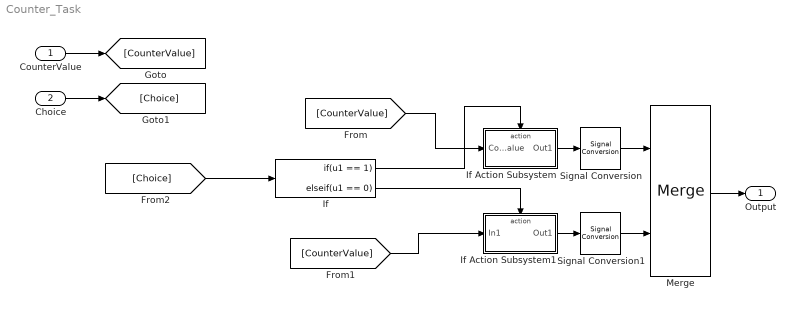
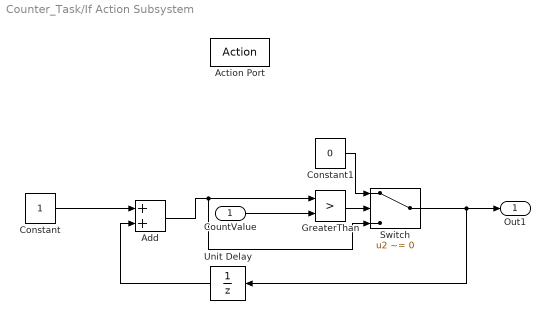
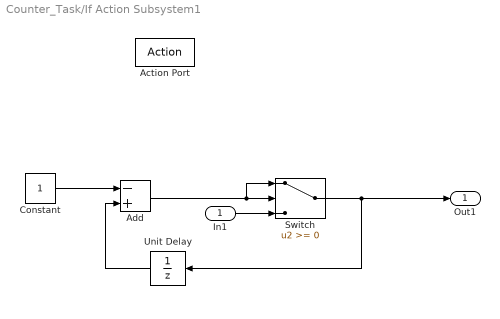
/*
 * File: Counter_Task.c
 *
 * Code generated for Simulink model 'Counter_Task'.
 *
 * Model version                  : 1.3
 * Simulink Coder version         : 9.5 (R2021a) 14-Nov-2020
 * C/C++ source code generated on : Mon Feb 12 16:46:40 2024
 *
 * Target selection: ert.tlc
 * Embedded hardware selection: Intel->x86-64 (Windows64)
 * Code generation objectives: Unspecified
 * Validation result: Not run
 */

#include "Counter_Task.h"
#include "Counter_Task_private.h"

/* Block states (default storage) */
DW_Counter_Task_T Counter_Task_DW;

/* External inputs (root inport signals with default storage) */
ExtU_Counter_Task_T Counter_Task_U;

/* External outputs (root outports fed by signals with default storage) */
ExtY_Counter_Task_T Counter_Task_Y;

/* Real-time model */
static RT_MODEL_Counter_Task_T Counter_Task_M_;
RT_MODEL_Counter_Task_T *const Counter_Task_M = &Counter_Task_M_;

/* Model step function */
void Counter_Task_step(void)
{
  /* If: '<Root>/If' incorporates:
   *  Inport: '<Root>/Choice'
   */
  if (Counter_Task_U.Choice == 1.0) {
    /* Outputs for IfAction SubSystem: '<Root>/If Action Subsystem' incorporates:
     *  ActionPort: '<S1>/Action Port'
     */
    /* Switch: '<S1>/Switch' incorporates:
     *  Constant: '<S1>/Constant'
     *  Inport: '<Root>/CounterValue'
     *  RelationalOperator: '<S1>/GreaterThan'
     *  Sum: '<S1>/Add'
     *  UnitDelay: '<S1>/Unit Delay'
     */
    if (Counter_Task_DW.UnitDelay_DSTATE_c + 1.0 > Counter_Task_U.CounterValue)
    {
      /* Update for UnitDelay: '<S1>/Unit Delay' incorporates:
       *  Constant: '<S1>/Constant1'
       */
      Counter_Task_DW.UnitDelay_DSTATE_c = 0.0;
    } else {
      /* Update for UnitDelay: '<S1>/Unit Delay' */
      Counter_Task_DW.UnitDelay_DSTATE_c++;
    }

    /* End of Switch: '<S1>/Switch' */
    /* End of Outputs for SubSystem: '<Root>/If Action Subsystem' */
  } else if (Counter_Task_U.Choice == 0.0) {
    /* Outputs for IfAction SubSystem: '<Root>/If Action Subsystem1' incorporates:
     *  ActionPort: '<S2>/Action Port'
     */
    /* Switch: '<S2>/Switch' incorporates:
     *  Constant: '<S2>/Constant'
     *  Inport: '<Root>/CounterValue'
     *  Sum: '<S2>/Add'
     *  UnitDelay: '<S2>/Unit Delay'
     */
    if (Counter_Task_DW.UnitDelay_DSTATE - 1.0 >= 0.0) {
      Counter_Task_DW.UnitDelay_DSTATE--;
    } else {
      Counter_Task_DW.UnitDelay_DSTATE = Counter_Task_U.CounterValue;
    }

    /* End of Switch: '<S2>/Switch' */
    /* End of Outputs for SubSystem: '<Root>/If Action Subsystem1' */
  }

  /* End of If: '<Root>/If' */

  /* Outport: '<Root>/Output' incorporates:
   *  SignalConversion: '<Root>/Signal Conversion1'
   *  UnitDelay: '<S2>/Unit Delay'
   */
  Counter_Task_Y.Output = Counter_Task_DW.UnitDelay_DSTATE;
}
